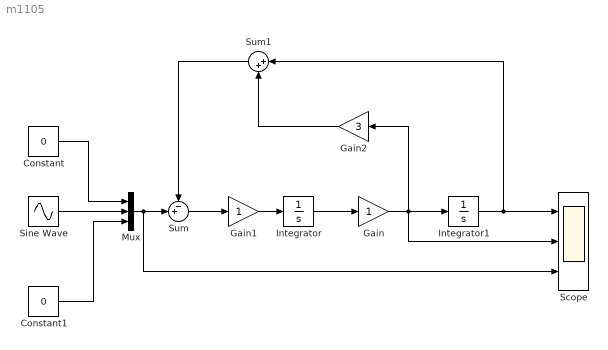
/*
 * m1105.c
 * 
 * Real-Time Workshop code generation for Simulink model "m1105.mdl".
 *
 * Model Version              : 1.8
 * Real-Time Workshop version : 6.1  (R14SP1)  05-Sep-2004
 * C source code generated on : Fri Apr 15 09:14:36 2005
 */

#include "m1105.h"
#include "m1105_private.h"

#include <stdio.h>
#include "m1105_dt.h"

/* Block signals (auto storage) */
BlockIO_m1105 m1105_B;

/* Continuous states */
ContinuousStates_m1105 m1105_X;

/* Solver Matrices */

/* A and B matrices used by ODE3 fixed-step solver */
static const real_T rt_ODE3_A[3] = {
  1.0/2.0, 3.0/4.0, 1.0
};
static const real_T rt_ODE3_B[3][3] = {
  { 1.0/2.0, 0.0, 0.0 },
  { 0.0, 3.0/4.0, 0.0 },
  { 2.0/9.0, 1.0/3.0, 4.0/9.0 }
};

/* Block states (auto storage) */
D_Work_m1105 m1105_DWork;

/* Real-time model */
rtModel_m1105 m1105_M_;
rtModel_m1105 *m1105_M = &m1105_M_;

/* This function implements a singletasking scheduler for a system with 2
 * rates.  This function is called by the generated step function, hence the
 * generated code self-manages all its subrates.
 */
static void rate_scheduler(void)
{

  /* Compute which subrates run during the next base time step.  Subrates
   * are an integer multiple of the base rate counter.  Therefore, the subtask
   * counter is reset when it reaches its limit (zero means run).
   */
}

/* This function updates continuous states using the ODE3 fixed-step
 * solver algorithm
 */
static void rt_ertODEUpdateContinuousStates(RTWSolverInfo *si , int_T tid)
{
  time_T t = rtsiGetT(si);
  time_T tnew = rtsiGetSolverStopTime(si);
  time_T h = rtsiGetStepSize(si);
  real_T *x = rtsiGetContStates(si);
  ODE3_IntgData *id = rtsiGetSolverData(si);
  real_T *y = id->y;
  real_T *f0 = id->f[0];
  real_T *f1 = id->f[1];
  real_T *f2 = id->f[2];
  real_T hB[3];
  int_T i;

  int_T nXc = 6;

  rtsiSetSimTimeStep(si,MINOR_TIME_STEP);

  /* Save the state values at time t in y, we'll use x as ynew. */
  (void)memcpy(y, x, nXc*sizeof(real_T));

  /* Assumes that rtsiSetT and ModelOutputs are up-to-date */
  /* f0 = f(t,y) */
  rtsiSetdX(si, f0);
  m1105_derivatives();

  /* f(:,2) = feval(odefile, t + hA(1), y + f*hB(:,1), args(:)(*)); */
  hB[0] = h * rt_ODE3_B[0][0];
  for (i = 0; i < nXc; i++) {
    x[i] = y[i] + (f0[i]*hB[0]);
  }
  rtsiSetT(si, t + h*rt_ODE3_A[0]);
  rtsiSetdX(si, f1);
  m1105_output(0);
  m1105_derivatives();

  /* f(:,3) = feval(odefile, t + hA(2), y + f*hB(:,2), args(:)(*)); */
  for (i = 0; i <= 1; i++) hB[i] = h * rt_ODE3_B[1][i];
  for (i = 0; i < nXc; i++) {
    x[i] = y[i] + (f0[i]*hB[0] + f1[i]*hB[1]);
  }
  rtsiSetT(si, t + h*rt_ODE3_A[1]);
  rtsiSetdX(si, f2);
  m1105_output(0);
  m1105_derivatives();

  /* tnew = t + hA(3);
     ynew = y + f*hB(:,3); */
  for (i = 0; i <= 2; i++) hB[i] = h * rt_ODE3_B[2][i];
  for (i = 0; i < nXc; i++) {
    x[i] = y[i] + (f0[i]*hB[0] + f1[i]*hB[1] + f2[i]*hB[2]);
  }
  rtsiSetT(si, tnew);

  rtsiSetSimTimeStep(si,MAJOR_TIME_STEP);
}

/* Model output function */
void m1105_output(int_T tid)
{

  /* local block i/o variables */

  real_T rtb_Integrator[3];

  /* Update absolute time of base rate at minor time step */
  if (rtmIsMinorTimeStep(m1105_M)) {
    m1105_M->Timing.t[0] = rtsiGetT(&m1105_M->solverInfo);
  }

  if (rtmIsMajorTimeStep(m1105_M)) {
    /* set solver stop time */
    rtsiSetSolverStopTime(&m1105_M->solverInfo,
     ((m1105_M->Timing.clockTick0+1)*m1105_M->Timing.stepSize0));
  }                                     /* end MajorTimeStep */

  /* Integrator: '<Root>/Integrator1' */
  m1105_B.Integrator1[0] = m1105_X.Integrator1_CSTATE[0];
  m1105_B.Integrator1[1] = m1105_X.Integrator1_CSTATE[1];
  m1105_B.Integrator1[2] = m1105_X.Integrator1_CSTATE[2];

  /* Integrator: '<Root>/Integrator' */
  rtb_Integrator[0] = m1105_X.Integrator_CSTATE[0];
  rtb_Integrator[1] = m1105_X.Integrator_CSTATE[1];
  rtb_Integrator[2] = m1105_X.Integrator_CSTATE[2];

  /* Gain: '<Root>/Gain' */
  m1105_B.Gain[0] = rtb_Integrator[0] * m1105_P.Gain_Gain;
  m1105_B.Gain[1] = rtb_Integrator[1] * m1105_P.Gain_Gain;
  m1105_B.Gain[2] = rtb_Integrator[2] * m1105_P.Gain_Gain;

  if (rtmIsMajorTimeStep(m1105_M) &&
   m1105_M->Timing.TaskCounters.TID[1] == 0) { /* Sample time: [0.01s, 0.0s] */

    /* Constant: '<Root>/Constant' */
    m1105_B.Constant = m1105_P.Constant_Value;
  }

  /* Sin: '<Root>/Sine Wave' */
  m1105_B.SineWave = m1105_P.SineWave_Amp *
    sin(m1105_P.SineWave_Freq * m1105_M->Timing.t[0] + m1105_P.SineWave_Phase) +
    m1105_P.SineWave_Bias;

  if (rtmIsMajorTimeStep(m1105_M) &&
   m1105_M->Timing.TaskCounters.TID[1] == 0) { /* Sample time: [0.01s, 0.0s] */

    /* Constant: '<Root>/Constant1' */
    m1105_B.Constant1 = m1105_P.Constant1_Value;
  }

  /* Gain: '<Root>/Gain1' incorporates:
   *  Gain: '<Root>/Gain2'
   *  Sum: '<Root>/Sum1'
   *  Sum: '<Root>/Sum' */
  m1105_B.Gain1[0] = (m1105_B.Constant - (m1105_B.Integrator1[0] +
    m1105_B.Gain[0] * m1105_P.Gain2_Gain)) * m1105_P.Gain1_Gain;
  m1105_B.Gain1[1] = (m1105_B.SineWave - (m1105_B.Integrator1[1] +
    m1105_B.Gain[1] * m1105_P.Gain2_Gain)) * m1105_P.Gain1_Gain;
  m1105_B.Gain1[2] = (m1105_B.Constant1 - (m1105_B.Integrator1[2] +
    m1105_B.Gain[2] * m1105_P.Gain2_Gain)) * m1105_P.Gain1_Gain;
}

/* Model update function */
void m1105_update(int_T tid)
{

  if (rtmIsMajorTimeStep(m1105_M)) {
    rt_ertODEUpdateContinuousStates(&m1105_M->solverInfo, 0);
  }

  /* Update absolute time for base rate */

  if(!(++m1105_M->Timing.clockTick0)) ++m1105_M->Timing.clockTickH0;
  m1105_M->Timing.t[0] = m1105_M->Timing.clockTick0 * m1105_M->Timing.stepSize0
    + m1105_M->Timing.clockTickH0 * m1105_M->Timing.stepSize0 * 4294967296.0;

  if (rtmIsMajorTimeStep(m1105_M) &&
   m1105_M->Timing.TaskCounters.TID[1] == 0) {
    /* Update absolute timer for sample time: [0.01s, 0.0s] */

    if(!(++m1105_M->Timing.clockTick1)) ++m1105_M->Timing.clockTickH1;
    m1105_M->Timing.t[1] = m1105_M->Timing.clockTick1 *
      m1105_M->Timing.stepSize1 + m1105_M->Timing.clockTickH1 *
      m1105_M->Timing.stepSize1 * 4294967296.0;
  }

  rate_scheduler();
}
